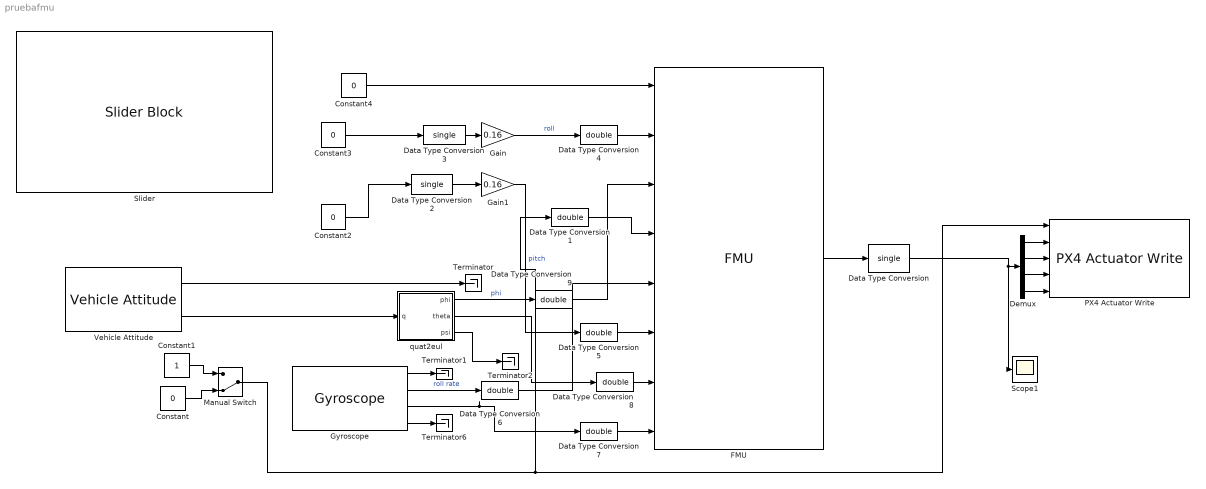
== matlab function pruebafmu/quat2eul ==
function [phi,theta,psi] = quat2eul(q)

% Quaternion conversion to Euler angles based on the PX4 Firmware v1.10.2
% release.

phi = atan2(2*(q(1)*q(2) + q(3)* q(4)), q(1)^2 - q(2)^2 - q(3)^2 + q(4)^2);
theta = asin(-2*(q(2)*q(4) - q(1)*q(3)));
psi = atan2(2*(q(2)*q(3) + q(1)* q(4)), q(1)^2 + q(2)^2 - q(3)^2 - q(4)^2);
end

//
// Academic License - for use in teaching, academic research, and meeting
// course requirements at degree granting institutions only.  Not for
// government, commercial, or other organizational use.
//
// File: pruebafmu.cpp
//
// Code generated for Simulink model 'pruebafmu'.
//
// Model version                  : 12.34
// Simulink Coder version         : 25.1 (R2025a) 21-Nov-2024
// C/C++ source code generated on : Thu Jan  8 12:17:43 2026
//
// Target selection: ert.tlc
// Embedded hardware selection: ARM Compatible->ARM Cortex
// Code generation objectives: Unspecified
// Validation result: Not run
//
#include "pruebafmu.h"
#include "pruebafmu_types.h"
#include "pruebafmu_private.h"
#include <math.h>
#include "rtwtypes.h"
#include <stddef.h>
#include <string.h>

extern "C"
{

#include "rt_nonfinite.h"

}

#include "rt_defines.h"

// user code (top of source file)
#include "RTWCG_FMU2_target.h"

// Block signals (default storage)
B_pruebafmu_T pruebafmu_B;

// Block states (default storage)
DW_pruebafmu_T pruebafmu_DW;

// Real-time model
RT_MODEL_pruebafmu_T pruebafmu_M_ = RT_MODEL_pruebafmu_T();
RT_MODEL_pruebafmu_T *const pruebafmu_M = &pruebafmu_M_;

// Forward declaration for local functions
static void pruebafm_PX4Actuators_setupImpl(px4_internal_block_PX4Actuato_T *obj);
real32_T rt_atan2f_snf(real32_T u0, real32_T u1)
{
  real32_T y;
  if (rtIsNaNF(u0) || rtIsNaNF(u1)) {
    y = (rtNaNF);
  } else if (rtIsInfF(u0) && rtIsInfF(u1)) {
    int32_T tmp;
    int32_T tmp_0;
    if (u0 > 0.0F) {
      tmp = 1;
    } else {
      tmp = -1;
    }

    if (u1 > 0.0F) {
      tmp_0 = 1;
    } else {
      tmp_0 = -1;
    }

    y = static_cast<real32_T>(atan2(static_cast<real_T>(static_cast<real32_T>
      (tmp)), static_cast<real_T>(static_cast<real32_T>(tmp_0))));
  } else if (u1 == 0.0F) {
    if (u0 > 0.0F) {
      y = RT_PIF / 2.0F;
    } else if (u0 < 0.0F) {
      y = -(RT_PIF / 2.0F);
    } else {
      y = 0.0F;
    }
  } else {
    y = static_cast<real32_T>(atan2(static_cast<real_T>(u0), static_cast<real_T>
      (u1)));
  }

  return y;
}

static void pruebafm_PX4Actuators_setupImpl(px4_internal_block_PX4Actuato_T *obj)
{
  int32_T n;
  int32_T n_0;
  obj->ValidMotorIdx[0] = true;
  obj->ValidMotorIdx[1] = true;
  obj->ValidMotorIdx[2] = true;
  obj->ValidMotorIdx[3] = true;
  n = 0;
  for (int32_T b_k = 0; b_k < 12; b_k++) {
    // Start for MATLABSystem: '<Root>/PX4 Actuator Write'
    if (obj->ValidMotorIdx[b_k]) {
      n++;
    }
  }

  n_0 = 0;
  for (int32_T b_k = 0; b_k < 8; b_k++) {
    // Start for MATLABSystem: '<Root>/PX4 Actuator Write'
    if (obj->ValidServoIdx[b_k]) {
      n_0++;
    }
  }

  // Start for MATLABSystem: '<Root>/PX4 Actuator Write'
  obj->QSize = static_cast<uint8_T>(n + n_0);
  MW_actuators_init(obj->QSize);
}

// Model step function
void pruebafmu_step(void)
{
  real_T currentTime;
  real_T stepError;
  real_T stepsize;
  int32_T i;
  real32_T phi;
  real32_T rtb_pitch;
  real32_T rtb_pitch_f;
  real32_T theta;
  boolean_T b_varargout_1;
  boolean_T rtb_ManualSwitch;

  // Reset subsysRan breadcrumbs
  srClearBC(pruebafmu_DW.EnabledSubsystem_SubsysRanBC_f);

  // Reset subsysRan breadcrumbs
  srClearBC(pruebafmu_DW.EnabledSubsystem_SubsysRanBC);

  // Gain: '<Root>/Gain' incorporates:
  //   Constant: '<Root>/Constant3'
  //   DataTypeConversion: '<Root>/Data Type Conversion3'

  rtb_pitch = pruebafmu_P.Gain_Gain * static_cast<real32_T>
    (pruebafmu_P.Constant3_Value);

  // MATLABSystem: '<S6>/SourceBlock'
  b_varargout_1 = uORB_read_step(pruebafmu_DW.obj_c.orbMetadataObj,
    &pruebafmu_DW.obj_c.eventStructObj, &pruebafmu_B.r, false, 1.0);

  // Outputs for Enabled SubSystem: '<S6>/Enabled Subsystem' incorporates:
  //   EnablePort: '<S7>/Enable'

  // Start for MATLABSystem: '<S6>/SourceBlock'
  if (b_varargout_1) {
    // SignalConversion generated from: '<S7>/In1'
    pruebafmu_B.In1 = pruebafmu_B.r;
    srUpdateBC(pruebafmu_DW.EnabledSubsystem_SubsysRanBC);
  }

  // End of Outputs for SubSystem: '<S6>/Enabled Subsystem'

  // MATLAB Function: '<Root>/quat2eul'
  phi = rt_atan2f_snf((pruebafmu_B.In1.q[0] * pruebafmu_B.In1.q[1] +
                       pruebafmu_B.In1.q[2] * pruebafmu_B.In1.q[3]) * 2.0F,
                      ((pruebafmu_B.In1.q[0] * pruebafmu_B.In1.q[0] -
                        pruebafmu_B.In1.q[1] * pruebafmu_B.In1.q[1]) -
                       pruebafmu_B.In1.q[2] * pruebafmu_B.In1.q[2]) +
                      pruebafmu_B.In1.q[3] * pruebafmu_B.In1.q[3]);
  theta = static_cast<real32_T>(asin(static_cast<real_T>((pruebafmu_B.In1.q[1] *
    pruebafmu_B.In1.q[3] - pruebafmu_B.In1.q[0] * pruebafmu_B.In1.q[2]) * -2.0F)));

  // ManualSwitch: '<Root>/Manual Switch' incorporates:
  //   Constant: '<Root>/Constant'
  //   Constant: '<Root>/Constant1'

  if (pruebafmu_P.ManualSwitch_CurrentSetting == 1) {
    rtb_ManualSwitch = pruebafmu_P.Constant1_Value;
  } else {
    rtb_ManualSwitch = pruebafmu_P.Constant_Value_b;
  }

  // End of ManualSwitch: '<Root>/Manual Switch'

  // MATLABSystem: '<S4>/SourceBlock'
  b_varargout_1 = uORB_read_step(pruebafmu_DW.obj_d.orbMetadataObj,
    &pruebafmu_DW.obj_d.eventStructObj, &pruebafmu_B.r1, false, 1.0);

  // Outputs for Enabled SubSystem: '<S4>/Enabled Subsystem' incorporates:
  //   EnablePort: '<S5>/Enable'

  // Start for MATLABSystem: '<S4>/SourceBlock'
  if (b_varargout_1) {
    // SignalConversion generated from: '<S5>/In1'
    pruebafmu_B.In1_e = pruebafmu_B.r1;
    srUpdateBC(pruebafmu_DW.EnabledSubsystem_SubsysRanBC_f);
  }

  // End of Outputs for SubSystem: '<S4>/Enabled Subsystem'

  // Gain: '<Root>/Gain1' incorporates:
  //   Constant: '<Root>/Constant2'
  //   DataTypeConversion: '<Root>/Data Type Conversion2'

  rtb_pitch_f = pruebafmu_P.Gain1_Gain * static_cast<real32_T>
    (pruebafmu_P.Constant2_Value);

  // FMU: '<Root>/FMU' incorporates:
  //   Constant: '<Root>/Constant4'
  //   DataTypeConversion: '<Root>/Data Type Conversion1'
  //   DataTypeConversion: '<Root>/Data Type Conversion4'
  //   DataTypeConversion: '<Root>/Data Type Conversion5'
  //   DataTypeConversion: '<Root>/Data Type Conversion6'
  //   DataTypeConversion: '<Root>/Data Type Conversion7'
  //   DataTypeConversion: '<Root>/Data Type Conversion8'
  //   DataTypeConversion: '<Root>/Data Type Conversion9'

  if (pruebafmu_DW.FMU_FmuIsInitialized == 0) {
    pruebafmu_DW.FMU_FmuPrevTime = pruebafmu_M->Timing.taskTime0;
    pruebafmu_DW.FMU_slPrevTime = pruebafmu_DW.FMU_FmuPrevTime;
    FMU2_enterInitializationMode(&pruebafmu_DW.FMU_FmuStruct2);
    pruebafmu_DW.FMU_ValContInReal[0] = pruebafmu_P.Constant4_Value;
    pruebafmu_DW.FMU_ValContInReal[1] = rtb_pitch;
    pruebafmu_DW.FMU_ValContInReal[2] = phi;
    pruebafmu_DW.FMU_ValContInReal[3] = rtb_ManualSwitch;
    pruebafmu_DW.FMU_ValContInReal[4] = pruebafmu_B.In1_e.x;
    pruebafmu_DW.FMU_ValContInReal[5] = rtb_pitch_f;
    pruebafmu_DW.FMU_ValContInReal[6] = theta;
    pruebafmu_DW.FMU_ValContInReal[7] = pruebafmu_B.In1_e.y;
    FMU2_setReal(&pruebafmu_DW.FMU_FmuStruct2, pruebafmu_P.FMU_VRContInReal, 8,
                 pruebafmu_DW.FMU_ValContInReal);
    FMU2_exitInitializationMode(&pruebafmu_DW.FMU_FmuStruct2);
    pruebafmu_DW.FMU_FmuIsInitialized = 1;
    FMU2_getReal(&pruebafmu_DW.FMU_FmuStruct2, pruebafmu_P.FMU_VROutReal, 4,
                 pruebafmu_DW.FMU_ValOutReal);
    pruebafmu_B.FMU[0] = pruebafmu_DW.FMU_ValOutReal[0];
    pruebafmu_B.FMU[1] = pruebafmu_DW.FMU_ValOutReal[1];
    pruebafmu_B.FMU[2] = pruebafmu_DW.FMU_ValOutReal[2];
    pruebafmu_B.FMU[3] = pruebafmu_DW.FMU_ValOutReal[3];
  } else {
    currentTime = pruebafmu_M->Timing.taskTime0;
    stepsize = currentTime - pruebafmu_DW.FMU_slPrevTime;
    if (stepsize > 0.0) {
      stepError = stepsize - 0.001;
      if (stepsize - 0.001 < 0.0) {
        stepError = 0.001 - stepsize;
      }

      if (stepError < 1.1920928955078125E-7) {
        stepsize = 0.001;
      }

      FMU2_doStep(&pruebafmu_DW.FMU_FmuStruct2, pruebafmu_DW.FMU_FmuPrevTime,
                  stepsize, 1);
      pruebafmu_DW.FMU_FmuPrevTime += stepsize;
      pruebafmu_DW.FMU_slPrevTime = currentTime;
      FMU2_getReal(&pruebafmu_DW.FMU_FmuStruct2, pruebafmu_P.FMU_VROutReal, 4,
                   pruebafmu_DW.FMU_ValOutReal);
      pruebafmu_B.FMU[0] = pruebafmu_DW.FMU_ValOutReal[0];
      pruebafmu_B.FMU[1] = pruebafmu_DW.FMU_ValOutReal[1];
      pruebafmu_B.FMU[2] = pruebafmu_DW.FMU_ValOutReal[2];
      pruebafmu_B.FMU[3] = pruebafmu_DW.FMU_ValOutReal[3];
    }
  }

  // End of FMU: '<Root>/FMU'

  // DataTypeConversion: '<Root>/Data Type Conversion'
  pruebafmu_B.DataTypeConversion[0] = static_cast<real32_T>(pruebafmu_B.FMU[0]);
  pruebafmu_B.DataTypeConversion[1] = static_cast<real32_T>(pruebafmu_B.FMU[1]);
  pruebafmu_B.DataTypeConversion[2] = static_cast<real32_T>(pruebafmu_B.FMU[2]);
  pruebafmu_B.DataTypeConversion[3] = static_cast<real32_T>(pruebafmu_B.FMU[3]);

  // MATLABSystem: '<Root>/PX4 Actuator Write'
  for (i = 0; i < 12; i++) {
    pruebafmu_B.motorValues[i] = (rtNaNF);
  }

  for (i = 0; i < 8; i++) {
    pruebafmu_B.servoValues[i] = (rtNaNF);
  }

  pruebafmu_B.motorValues[0] = pruebafmu_B.DataTypeConversion[0];
  pruebafmu_B.motorValues[1] = pruebafmu_B.DataTypeConversion[1];
  pruebafmu_B.motorValues[2] = pruebafmu_B.DataTypeConversion[2];
  pruebafmu_B.motorValues[3] = pruebafmu_B.DataTypeConversion[3];
  MW_actuators_set(rtb_ManualSwitch, &pruebafmu_B.motorValues[0],
                   &pruebafmu_B.servoValues[0]);

  // End of MATLABSystem: '<Root>/PX4 Actuator Write'
  // Update for FMU: '<Root>/FMU' incorporates:
  //   Constant: '<Root>/Constant4'
  //   DataTypeConversion: '<Root>/Data Type Conversion1'
  //   DataTypeConversion: '<Root>/Data Type Conversion4'
  //   DataTypeConversion: '<Root>/Data Type Conversion5'
  //   DataTypeConversion: '<Root>/Data Type Conversion6'
  //   DataTypeConversion: '<Root>/Data Type Conversion7'
  //   DataTypeConversion: '<Root>/Data Type Conversion8'
  //   DataTypeConversion: '<Root>/Data Type Conversion9'

  pruebafmu_DW.FMU_ValContInReal[0] = pruebafmu_P.Constant4_Value;
  pruebafmu_DW.FMU_ValContInReal[1] = rtb_pitch;
  pruebafmu_DW.FMU_ValContInReal[2] = phi;
  pruebafmu_DW.FMU_ValContInReal[3] = rtb_ManualSwitch;
  pruebafmu_DW.FMU_ValContInReal[4] = pruebafmu_B.In1_e.x;
  pruebafmu_DW.FMU_ValContInReal[5] = rtb_pitch_f;
  pruebafmu_DW.FMU_ValContInReal[6] = theta;
  pruebafmu_DW.FMU_ValContInReal[7] = pruebafmu_B.In1_e.y;
  FMU2_setReal(&pruebafmu_DW.FMU_FmuStruct2, pruebafmu_P.FMU_VRContInReal, 8,
               pruebafmu_DW.FMU_ValContInReal);

  // Update absolute time for base rate
  // The "clockTick0" counts the number of times the code of this task has
  //  been executed. The absolute time is the multiplication of "clockTick0"
  //  and "Timing.stepSize0". Size of "clockTick0" ensures timer will not
  //  overflow during the application lifespan selected.

  pruebafmu_M->Timing.taskTime0 =
    ((time_T)(++pruebafmu_M->Timing.clockTick0)) * pruebafmu_M->Timing.stepSize0;
}
